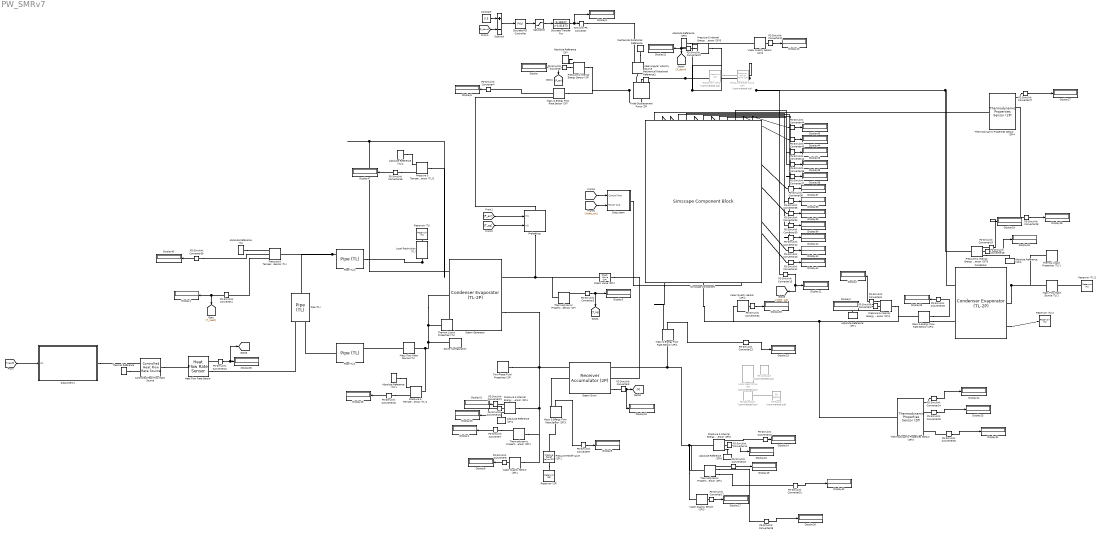
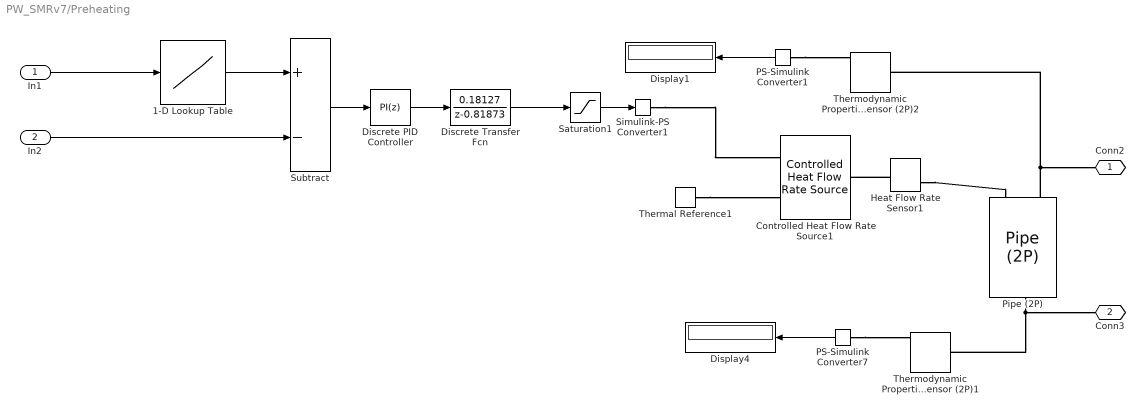
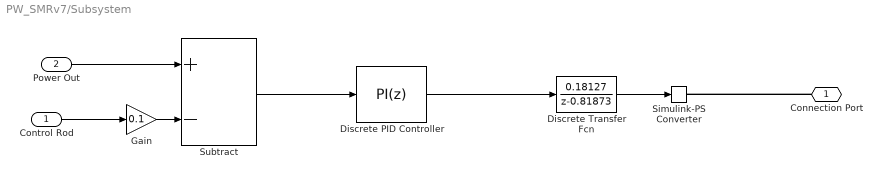
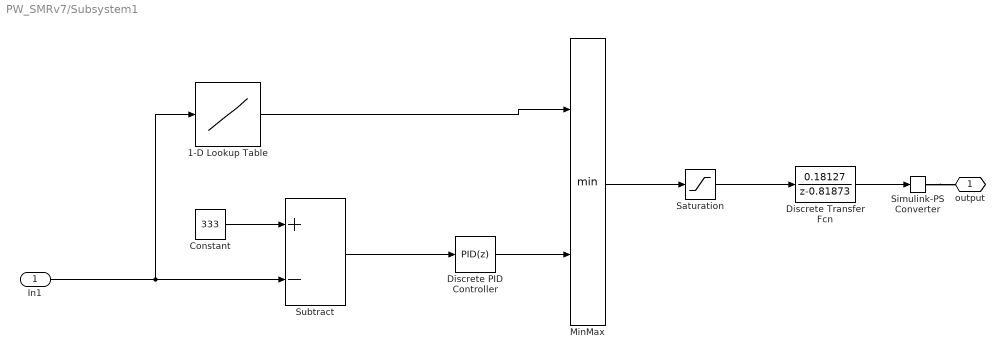
/*
 * PW_SMRv7.cpp
 *
 * Academic License - for use in teaching, academic research, and meeting
 * course requirements at degree granting institutions only.  Not for
 * government, commercial, or other organizational use.
 *
 * Code generation for model "PW_SMRv7".
 *
 * Model version              : 1.15
 * Simulink Coder version : 9.8 (R2022b) 13-May-2022
 * C++ source code generated on : Mon Sep 28 12:13:55 2026
 *
 * Target selection: slrealtime.tlc
 * Note: GRT includes extra infrastructure and instrumentation for prototyping
 * Embedded hardware selection: Intel->x86-64 (Linux 64)
 * Code generation objectives: Unspecified
 * Validation result: Not run
 */

#include "PW_SMRv7.h"
#include "rtwtypes.h"
#include "PW_SMRv7_cal.h"
#include <cstring>

extern "C"
{

#include "rt_nonfinite.h"

}

#include <stddef.h>
#include "PW_SMRv7_private.h"

/* Block signals (default storage) */
B_PW_SMRv7_T PW_SMRv7_B;

/* Block states (default storage) */
DW_PW_SMRv7_T PW_SMRv7_DW;

/* Real-time model */
RT_MODEL_PW_SMRv7_T PW_SMRv7_M_ = RT_MODEL_PW_SMRv7_T();
RT_MODEL_PW_SMRv7_T *const PW_SMRv7_M = &PW_SMRv7_M_;
real_T look1_binlxpw(real_T u0, const real_T bp0[], const real_T table[],
                     uint32_T maxIndex)
{
  real_T frac;
  real_T yL_0d0;
  uint32_T iLeft;

  /* Column-major Lookup 1-D
     Search method: 'binary'
     Use previous index: 'off'
     Interpolation method: 'Linear point-slope'
     Extrapolation method: 'Linear'
     Use last breakpoint for index at or above upper limit: 'off'
     Remove protection against out-of-range input in generated code: 'off'
   */
  /* Prelookup - Index and Fraction
     Index Search method: 'binary'
     Extrapolation method: 'Linear'
     Use previous index: 'off'
     Use last breakpoint for index at or above upper limit: 'off'
     Remove protection against out-of-range input in generated code: 'off'
   */
  if (u0 <= bp0[0U]) {
    iLeft = 0U;
    frac = (u0 - bp0[0U]) / (bp0[1U] - bp0[0U]);
  } else if (u0 < bp0[maxIndex]) {
    uint32_T bpIdx;
    uint32_T iRght;

    /* Binary Search */
    bpIdx = maxIndex >> 1U;
    iLeft = 0U;
    iRght = maxIndex;
    while (iRght - iLeft > 1U) {
      if (u0 < bp0[bpIdx]) {
        iRght = bpIdx;
      } else {
        iLeft = bpIdx;
      }

      bpIdx = (iRght + iLeft) >> 1U;
    }

    frac = (u0 - bp0[iLeft]) / (bp0[iLeft + 1U] - bp0[iLeft]);
  } else {
    iLeft = maxIndex - 1U;
    frac = (u0 - bp0[maxIndex - 1U]) / (bp0[maxIndex] - bp0[maxIndex - 1U]);
  }

  /* Column-major Interpolation 1-D
     Interpolation method: 'Linear point-slope'
     Use last breakpoint for index at or above upper limit: 'off'
     Overflow mode: 'portable wrapping'
   */
  yL_0d0 = table[iLeft];
  return (table[iLeft + 1U] - yL_0d0) * frac + yL_0d0;
}

/* Model step function */
void PW_SMRv7_step(void)
{
  NeslSimulationData *simulationData;
  NeslSimulator *simulator;
  NeuDiagnosticManager *diagnosticManager;
  NeuDiagnosticTree *diagnosticTree;
  char *msg;
  real_T tmp_2[327];
  real_T tmp_4[327];
  real_T tmp_6[327];
  real_T tmp_0[16];
  real_T tmp_8[16];
  real_T time;
  real_T time_0;
  real_T time_1;
  real_T time_2;
  real_T time_3;
  real_T time_4;
  real_T time_5;
  real_T time_6;
  real_T time_7;
  real_T u0;
  real_T u1;
  real_T u2;
  int32_T isHit;
  int32_T isHit_0;
  int32_T isHit_1;
  int32_T isHit_2;
  int32_T k;
  int_T tmp_3[6];
  int_T tmp_5[6];
  int_T tmp_7[6];
  int_T tmp_1[5];
  int_T tmp_9[5];
  boolean_T tmp;

  /* DiscreteTransferFcn: '<S51>/Discrete Transfer Fcn' */
  u1 = PW_SMRv7_cal->DiscreteTransferFcn_NumCoef *
    PW_SMRv7_DW.DiscreteTransferFcn_states;

  /* DiscreteTransferFcn: '<S51>/Discrete Transfer Fcn' */
  PW_SMRv7_B.DiscreteTransferFcn = u1;

  /* SimscapeInputBlock: '<S205>/INPUT_4_1_1' */
  PW_SMRv7_B.INPUT_4_1_1[0] = PW_SMRv7_B.DiscreteTransferFcn;
  PW_SMRv7_B.INPUT_4_1_1[1] = 0.0;
  PW_SMRv7_B.INPUT_4_1_1[2] = 0.0;
  PW_SMRv7_DW.INPUT_4_1_1_Discrete[0] = !(PW_SMRv7_B.INPUT_4_1_1[0] ==
    PW_SMRv7_DW.INPUT_4_1_1_Discrete[1]);
  PW_SMRv7_DW.INPUT_4_1_1_Discrete[1] = PW_SMRv7_B.INPUT_4_1_1[0];
  PW_SMRv7_B.INPUT_4_1_1[0] = PW_SMRv7_DW.INPUT_4_1_1_Discrete[1];
  PW_SMRv7_B.INPUT_4_1_1[3] = PW_SMRv7_DW.INPUT_4_1_1_Discrete[0];

  /* DiscreteTransferFcn: '<Root>/Discrete Transfer Fcn' */
  u1 = PW_SMRv7_cal->DiscreteTransferFcn_NumCoef_e *
    PW_SMRv7_DW.DiscreteTransferFcn_states_m;

  /* DiscreteTransferFcn: '<Root>/Discrete Transfer Fcn' */
  PW_SMRv7_B.DiscreteTransferFcn_a = u1;

  /* SimscapeInputBlock: '<S205>/INPUT_2_1_1' */
  PW_SMRv7_B.INPUT_2_1_1[0] = PW_SMRv7_B.DiscreteTransferFcn_a;
  PW_SMRv7_B.INPUT_2_1_1[1] = 0.0;
  PW_SMRv7_B.INPUT_2_1_1[2] = 0.0;
  PW_SMRv7_DW.INPUT_2_1_1_Discrete[0] = !(PW_SMRv7_B.INPUT_2_1_1[0] ==
    PW_SMRv7_DW.INPUT_2_1_1_Discrete[1]);
  PW_SMRv7_DW.INPUT_2_1_1_Discrete[1] = PW_SMRv7_B.INPUT_2_1_1[0];
  PW_SMRv7_B.INPUT_2_1_1[0] = PW_SMRv7_DW.INPUT_2_1_1_Discrete[1];
  PW_SMRv7_B.INPUT_2_1_1[3] = PW_SMRv7_DW.INPUT_2_1_1_Discrete[0];

  /* DiscreteTransferFcn: '<S47>/Discrete Transfer Fcn' */
  u1 = PW_SMRv7_cal->DiscreteTransferFcn_NumCoef_er *
    PW_SMRv7_DW.DiscreteTransferFcn_states_n;

  /* DiscreteTransferFcn: '<S47>/Discrete Transfer Fcn' */
  PW_SMRv7_B.DiscreteTransferFcn_o = u1;

  /* Saturate: '<S47>/Saturation1' */
  u0 = PW_SMRv7_B.DiscreteTransferFcn_o;
  u1 = PW_SMRv7_cal->Saturation1_LowerSat;
  u2 = PW_SMRv7_cal->Saturation1_UpperSat;
  if (u0 > u2) {
    /* Saturate: '<S47>/Saturation1' */
    PW_SMRv7_B.Saturation1 = u2;
  } else if (u0 < u1) {
    /* Saturate: '<S47>/Saturation1' */
    PW_SMRv7_B.Saturation1 = u1;
  } else {
    /* Saturate: '<S47>/Saturation1' */
    PW_SMRv7_B.Saturation1 = u0;
  }

  /* End of Saturate: '<S47>/Saturation1' */

  /* SimscapeInputBlock: '<S205>/INPUT_1_1_1' */
  PW_SMRv7_B.INPUT_1_1_1[0] = PW_SMRv7_B.Saturation1;
  PW_SMRv7_B.INPUT_1_1_1[1] = 0.0;
  PW_SMRv7_B.INPUT_1_1_1[2] = 0.0;
  PW_SMRv7_DW.INPUT_1_1_1_Discrete[0] = !(PW_SMRv7_B.INPUT_1_1_1[0] ==
    PW_SMRv7_DW.INPUT_1_1_1_Discrete[1]);
  PW_SMRv7_DW.INPUT_1_1_1_Discrete[1] = PW_SMRv7_B.INPUT_1_1_1[0];
  PW_SMRv7_B.INPUT_1_1_1[0] = PW_SMRv7_DW.INPUT_1_1_1_Discrete[1];
  PW_SMRv7_B.INPUT_1_1_1[3] = PW_SMRv7_DW.INPUT_1_1_1_Discrete[0];

  /* DiscreteTransferFcn: '<S50>/Discrete Transfer Fcn' */
  u1 = PW_SMRv7_cal->DiscreteTransferFcn_NumCoef_o *
    PW_SMRv7_DW.DiscreteTransferFcn_states_h;

  /* DiscreteTransferFcn: '<S50>/Discrete Transfer Fcn' */
  PW_SMRv7_B.DiscreteTransferFcn_n = u1;

  /* SimscapeInputBlock: '<S205>/INPUT_3_1_1' */
  PW_SMRv7_B.INPUT_3_1_1[0] = PW_SMRv7_B.DiscreteTransferFcn_n;
  PW_SMRv7_B.INPUT_3_1_1[1] = 0.0;
  PW_SMRv7_B.INPUT_3_1_1[2] = 0.0;
  PW_SMRv7_DW.INPUT_3_1_1_Discrete[0] = !(PW_SMRv7_B.INPUT_3_1_1[0] ==
    PW_SMRv7_DW.INPUT_3_1_1_Discrete[1]);
  PW_SMRv7_DW.INPUT_3_1_1_Discrete[1] = PW_SMRv7_B.INPUT_3_1_1[0];
  PW_SMRv7_B.INPUT_3_1_1[0] = PW_SMRv7_DW.INPUT_3_1_1_Discrete[1];
  PW_SMRv7_B.INPUT_3_1_1[3] = PW_SMRv7_DW.INPUT_3_1_1_Discrete[0];

  /* SimscapeExecutionBlock: '<S205>/STATE_1' */
  simulationData = static_cast<NeslSimulationData *>(PW_SMRv7_DW.STATE_1_SimData);
  time = PW_SMRv7_M->Timing.taskTime0;
  simulationData->mData->mTime.mN = 1;
  simulationData->mData->mTime.mX = &time;
  simulationData->mData->mContStates.mN = 0;
  simulationData->mData->mContStates.mX = NULL;
  simulationData->mData->mDiscStates.mN = 183;
  simulationData->mData->mDiscStates.mX = &PW_SMRv7_DW.STATE_1_Discrete[0];
  simulationData->mData->mModeVector.mN = 128;
  simulationData->mData->mModeVector.mX = &PW_SMRv7_DW.STATE_1_Modes[0];
  tmp = false;
  simulationData->mData->mFoundZcEvents = tmp;
  simulationData->mData->mIsMajorTimeStep = true;
  tmp = false;
  simulationData->mData->mIsSolverAssertCheck = tmp;
  simulationData->mData->mIsSolverCheckingCIC = false;
  simulationData->mData->mIsComputingJacobian = false;
  simulationData->mData->mIsEvaluatingF0 = false;
  simulationData->mData->mIsSolverRequestingReset = false;
  simulationData->mData->mIsModeUpdateTimeStep = true;
  tmp_1[0] = 0;
  tmp_0[0] = PW_SMRv7_B.INPUT_4_1_1[0];
  tmp_0[1] = PW_SMRv7_B.INPUT_4_1_1[1];
  tmp_0[2] = PW_SMRv7_B.INPUT_4_1_1[2];
  tmp_0[3] = PW_SMRv7_B.INPUT_4_1_1[3];
  tmp_1[1] = 4;
  tmp_0[4] = PW_SMRv7_B.INPUT_2_1_1[0];
  tmp_0[5] = PW_SMRv7_B.INPUT_2_1_1[1];
  tmp_0[6] = PW_SMRv7_B.INPUT_2_1_1[2];
  tmp_0[7] = PW_SMRv7_B.INPUT_2_1_1[3];
  tmp_1[2] = 8;
  tmp_0[8] = PW_SMRv7_B.INPUT_1_1_1[0];
  tmp_0[9] = PW_SMRv7_B.INPUT_1_1_1[1];
  tmp_0[10] = PW_SMRv7_B.INPUT_1_1_1[2];
  tmp_0[11] = PW_SMRv7_B.INPUT_1_1_1[3];
  tmp_1[3] = 12;
  tmp_0[12] = PW_SMRv7_B.INPUT_3_1_1[0];
  tmp_0[13] = PW_SMRv7_B.INPUT_3_1_1[1];
  tmp_0[14] = PW_SMRv7_B.INPUT_3_1_1[2];
  tmp_0[15] = PW_SMRv7_B.INPUT_3_1_1[3];
  tmp_1[4] = 16;
  simulationData->mData->mInputValues.mN = 16;
  simulationData->mData->mInputValues.mX = &tmp_0[0];
  simulationData->mData->mInputOffsets.mN = 5;
  simulationData->mData->mInputOffsets.mX = &tmp_1[0];
  simulationData->mData->mOutputs.mN = 311;
  simulationData->mData->mOutputs.mX = &PW_SMRv7_B.STATE_1[0];
  simulationData->mData->mTolerances.mN = 0;
  simulationData->mData->mTolerances.mX = NULL;
  simulationData->mData->mCstateHasChanged = false;
  time_0 = PW_SMRv7_M->Timing.taskTime0;
  simulationData->mData->mTime.mN = 1;
  simulationData->mData->mTime.mX = &time_0;
  isHit = 0;
  simulationData->mData->mSampleHits.mN = 1;
  simulationData->mData->mSampleHits.mX = &isHit;
  simulationData->mData->mIsFundamentalSampleHit = true;
  simulator = static_cast<NeslSimulator *>(PW_SMRv7_DW.STATE_1_Simulator);
  diagnosticManager = static_cast<NeuDiagnosticManager *>
    (PW_SMRv7_DW.STATE_1_DiagMgr);
  diagnosticTree = neu_diagnostic_manager_get_initial_tree(diagnosticManager);
  k = ne_simulator_method(simulator, NESL_SIM_OUTPUTS, simulationData,
    diagnosticManager);
  if (k != 0) {
    tmp = error_buffer_is_empty(rtmGetErrorStatus(PW_SMRv7_M));
    if (tmp) {
      msg = rtw_diagnostics_msg(diagnosticTree);
      rtmSetErrorStatus(PW_SMRv7_M, msg);
    }
  }

  /* End of SimscapeExecutionBlock: '<S205>/STATE_1' */

  /* SimscapeExecutionBlock: '<S205>/OUTPUT_1_1' */
  simulationData = static_cast<NeslSimulationData *>
    (PW_SMRv7_DW.OUTPUT_1_1_SimData);
  time_1 = PW_SMRv7_M->Timing.taskTime0;
  simulationData->mData->mTime.mN = 1;
  simulationData->mData->mTime.mX = &time_1;
  simulationData->mData->mContStates.mN = 0;
  simulationData->mData->mContStates.mX = NULL;
  simulationData->mData->mDiscStates.mN = 0;
  simulationData->mData->mDiscStates.mX = &PW_SMRv7_DW.OUTPUT_1_1_Discrete;
  simulationData->mData->mModeVector.mN = 0;
  simulationData->mData->mModeVector.mX = &PW_SMRv7_DW.OUTPUT_1_1_Modes;
  tmp = false;
  simulationData->mData->mFoundZcEvents = tmp;
  simulationData->mData->mIsMajorTimeStep = true;
  tmp = false;
  simulationData->mData->mIsSolverAssertCheck = tmp;
  simulationData->mData->mIsSolverCheckingCIC = false;
  simulationData->mData->mIsComputingJacobian = false;
  simulationData->mData->mIsEvaluatingF0 = false;
  simulationData->mData->mIsSolverRequestingReset = false;
  simulationData->mData->mIsModeUpdateTimeStep = true;
  tmp_3[0] = 0;
  tmp_2[0] = PW_SMRv7_B.INPUT_4_1_1[0];
  tmp_2[1] = PW_SMRv7_B.INPUT_4_1_1[1];
  tmp_2[2] = PW_SMRv7_B.INPUT_4_1_1[2];
  tmp_2[3] = PW_SMRv7_B.INPUT_4_1_1[3];
  tmp_3[1] = 4;
  tmp_2[4] = PW_SMRv7_B.INPUT_2_1_1[0];
  tmp_2[5] = PW_SMRv7_B.INPUT_2_1_1[1];
  tmp_2[6] = PW_SMRv7_B.INPUT_2_1_1[2];
  tmp_2[7] = PW_SMRv7_B.INPUT_2_1_1[3];
  tmp_3[2] = 8;
  tmp_2[8] = PW_SMRv7_B.INPUT_1_1_1[0];
  tmp_2[9] = PW_SMRv7_B.INPUT_1_1_1[1];
  tmp_2[10] = PW_SMRv7_B.INPUT_1_1_1[2];
  tmp_2[11] = PW_SMRv7_B.INPUT_1_1_1[3];
  tmp_3[3] = 12;
  tmp_2[12] = PW_SMRv7_B.INPUT_3_1_1[0];
  tmp_2[13] = PW_SMRv7_B.INPUT_3_1_1[1];
  tmp_2[14] = PW_SMRv7_B.INPUT_3_1_1[2];
  tmp_2[15] = PW_SMRv7_B.INPUT_3_1_1[3];
  tmp_3[4] = 16;
  std::memcpy(&tmp_2[16], &PW_SMRv7_B.STATE_1[0], 311U * sizeof(real_T));
  tmp_3[5] = 327;
  simulationData->mData->mInputValues.mN = 327;
  simulationData->mData->mInputValues.mX = &tmp_2[0];
  simulationData->mData->mInputOffsets.mN = 6;
  simulationData->mData->mInputOffsets.mX = &tmp_3[0];
  simulationData->mData->mOutputs.mN = 40;
  simulationData->mData->mOutputs.mX = &PW_SMRv7_B.OUTPUT_1_1[0];
  simulationData->mData->mTolerances.mN = 0;
  simulationData->mData->mTolerances.mX = NULL;
  simulationData->mData->mCstateHasChanged = false;
  time_2 = PW_SMRv7_M->Timing.taskTime0;
  simulationData->mData->mTime.mN = 1;
  simulationData->mData->mTime.mX = &time_2;
  isHit_0 = 0;
  simulationData->mData->mSampleHits.mN = 1;
  simulationData->mData->mSampleHits.mX = &isHit_0;
  simulationData->mData->mIsFundamentalSampleHit = true;
  simulator = static_cast<NeslSimulator *>(PW_SMRv7_DW.OUTPUT_1_1_Simulator);
  diagnosticManager = static_cast<NeuDiagnosticManager *>
    (PW_SMRv7_DW.OUTPUT_1_1_DiagMgr);
  diagnosticTree = neu_diagnostic_manager_get_initial_tree(diagnosticManager);
  k = ne_simulator_method(simulator, NESL_SIM_OUTPUTS, simulationData,
    diagnosticManager);
  if (k != 0) {
    tmp = error_buffer_is_empty(rtmGetErrorStatus(PW_SMRv7_M));
    if (tmp) {
      msg = rtw_diagnostics_msg(diagnosticTree);
      rtmSetErrorStatus(PW_SMRv7_M, msg);
    }
  }

  /* End of SimscapeExecutionBlock: '<S205>/OUTPUT_1_1' */

  /* Reshape: '<S117>/RESHAPE' */
  PW_SMRv7_B.RESHAPE = PW_SMRv7_B.OUTPUT_1_1[12];

  /* Sum: '<Root>/Subtract' incorporates:
   *  Constant: '<Root>/Constant'
   */
  PW_SMRv7_B.Subtract = PW_SMRv7_cal->Constant_Value - PW_SMRv7_B.RESHAPE;

  /* Gain: '<S90>/Proportional Gain' */
  PW_SMRv7_B.ProportionalGain = PW_SMRv7_cal->DiscretePIDController_P *
    PW_SMRv7_B.Subtract;

  /* DiscreteIntegrator: '<S85>/Integrator' */
  PW_SMRv7_B.Integrator = PW_SMRv7_DW.Integrator_DSTATE;

  /* Sum: '<S94>/Sum' */
  PW_SMRv7_B.Sum = PW_SMRv7_B.ProportionalGain + PW_SMRv7_B.Integrator;

  /* DeadZone: '<S78>/DeadZone' */
  if (PW_SMRv7_B.Sum > PW_SMRv7_cal->DiscretePIDController_UpperSatu) {
    /* DeadZone: '<S78>/DeadZone' */
    PW_SMRv7_B.DeadZone = PW_SMRv7_B.Sum -
      PW_SMRv7_cal->DiscretePIDController_UpperSatu;
  } else if (PW_SMRv7_B.Sum >= PW_SMRv7_cal->DiscretePIDController_LowerSatu) {
    /* DeadZone: '<S78>/DeadZone' */
    PW_SMRv7_B.DeadZone = 0.0;
  } else {
    /* DeadZone: '<S78>/DeadZone' */
    PW_SMRv7_B.DeadZone = PW_SMRv7_B.Sum -
      PW_SMRv7_cal->DiscretePIDController_LowerSatu;
  }

  /* End of DeadZone: '<S78>/DeadZone' */

  /* RelationalOperator: '<S76>/Relational Operator' incorporates:
   *  Constant: '<S76>/Clamping_zero'
   */
  PW_SMRv7_B.RelationalOperator = (PW_SMRv7_cal->Clamping_zero_Value !=
    PW_SMRv7_B.DeadZone);

  /* RelationalOperator: '<S76>/fix for DT propagation issue' incorporates:
   *  Constant: '<S76>/Clamping_zero'
   */
  PW_SMRv7_B.fixforDTpropagationissue = (PW_SMRv7_B.DeadZone >
    PW_SMRv7_cal->Clamping_zero_Value);

  /* Switch: '<S76>/Switch1' */
  if (PW_SMRv7_B.fixforDTpropagationissue) {
    /* Switch: '<S76>/Switch1' incorporates:
     *  Constant: '<S76>/Constant'
     */
    PW_SMRv7_B.Switch1 = PW_SMRv7_cal->Constant_Value_k;
  } else {
    /* Switch: '<S76>/Switch1' incorporates:
     *  Constant: '<S76>/Constant2'
     */
    PW_SMRv7_B.Switch1 = PW_SMRv7_cal->Constant2_Value;
  }

  /* End of Switch: '<S76>/Switch1' */

  /* Gain: '<S82>/Integral Gain' */
  PW_SMRv7_B.IntegralGain = PW_SMRv7_cal->DiscretePIDController_I *
    PW_SMRv7_B.Subtract;

  /* RelationalOperator: '<S76>/fix for DT propagation issue1' incorporates:
   *  Constant: '<S76>/Clamping_zero'
   */
  PW_SMRv7_B.fixforDTpropagationissue1 = (PW_SMRv7_B.IntegralGain >
    PW_SMRv7_cal->Clamping_zero_Value);

  /* Switch: '<S76>/Switch2' */
  if (PW_SMRv7_B.fixforDTpropagationissue1) {
    /* Switch: '<S76>/Switch2' incorporates:
     *  Constant: '<S76>/Constant3'
     */
    PW_SMRv7_B.Switch2 = PW_SMRv7_cal->Constant3_Value;
  } else {
    /* Switch: '<S76>/Switch2' incorporates:
     *  Constant: '<S76>/Constant4'
     */
    PW_SMRv7_B.Switch2 = PW_SMRv7_cal->Constant4_Value;
  }

  /* End of Switch: '<S76>/Switch2' */

  /* RelationalOperator: '<S76>/Equal1' */
  PW_SMRv7_B.Equal1 = (PW_SMRv7_B.Switch1 == PW_SMRv7_B.Switch2);

  /* Logic: '<S76>/AND3' */
  PW_SMRv7_B.AND3 = (PW_SMRv7_B.RelationalOperator && PW_SMRv7_B.Equal1);

  /* Switch: '<S76>/Switch' */
  if (PW_SMRv7_B.AND3) {
    /* Switch: '<S76>/Switch' incorporates:
     *  Constant: '<S76>/Constant1'
     */
    PW_SMRv7_B.Switch = PW_SMRv7_cal->Constant1_Value;
  } else {
    /* Switch: '<S76>/Switch' */
    PW_SMRv7_B.Switch = PW_SMRv7_B.IntegralGain;
  }

  /* End of Switch: '<S76>/Switch' */

  /* Saturate: '<S92>/Saturation' */
  u0 = PW_SMRv7_B.Sum;
  u1 = PW_SMRv7_cal->DiscretePIDController_LowerSatu;
  u2 = PW_SMRv7_cal->DiscretePIDController_UpperSatu;
  if (u0 > u2) {
    /* Saturate: '<S92>/Saturation' */
    PW_SMRv7_B.Saturation = u2;
  } else if (u0 < u1) {
    /* Saturate: '<S92>/Saturation' */
    PW_SMRv7_B.Saturation = u1;
  } else {
    /* Saturate: '<S92>/Saturation' */
    PW_SMRv7_B.Saturation = u0;
  }

  /* End of Saturate: '<S92>/Saturation' */

  /* Saturate: '<Root>/Saturation' */
  u0 = PW_SMRv7_B.Saturation;
  u1 = PW_SMRv7_cal->Saturation_LowerSat;
  u2 = PW_SMRv7_cal->Saturation_UpperSat;
  if (u0 > u2) {
    /* Saturate: '<Root>/Saturation' */
    PW_SMRv7_B.Saturation_l = u2;
  } else if (u0 < u1) {
    /* Saturate: '<Root>/Saturation' */
    PW_SMRv7_B.Saturation_l = u1;
  } else {
    /* Saturate: '<Root>/Saturation' */
    PW_SMRv7_B.Saturation_l = u0;
  }

  /* End of Saturate: '<Root>/Saturation' */

  /* Reshape: '<S102>/RESHAPE' */
  PW_SMRv7_B.RESHAPE_e = PW_SMRv7_B.OUTPUT_1_1[15];

  /* Reshape: '<S125>/RESHAPE' */
  PW_SMRv7_B.RESHAPE_k = PW_SMRv7_B.OUTPUT_1_1[35];

  /* Lookup_n-D: '<S47>/1-D Lookup Table' incorporates:
   *  Reshape: '<S102>/RESHAPE'
   */
  PW_SMRv7_B.uDLookupTable = look1_binlxpw(PW_SMRv7_B.RESHAPE_e,
    PW_SMRv7_cal->uDLookupTable_bp01Data, PW_SMRv7_cal->uDLookupTable_tableData,
    9U);

  /* Sum: '<S47>/Subtract' */
  PW_SMRv7_B.Subtract_h = PW_SMRv7_B.uDLookupTable - PW_SMRv7_B.RESHAPE_k;

  /* Gain: '<S189>/Proportional Gain' */
  PW_SMRv7_B.ProportionalGain_d = PW_SMRv7_cal->DiscretePIDController_P_h *
    PW_SMRv7_B.Subtract_h;

  /* DiscreteIntegrator: '<S184>/Integrator' */
  PW_SMRv7_B.Integrator_f = PW_SMRv7_DW.Integrator_DSTATE_k;

  /* Sum: '<S193>/Sum' */
  PW_SMRv7_B.Sum_p = PW_SMRv7_B.ProportionalGain_d + PW_SMRv7_B.Integrator_f;

  /* DeadZone: '<S177>/DeadZone' */
  if (PW_SMRv7_B.Sum_p > PW_SMRv7_P.DiscretePIDController_UpperSa_o) {
    /* DeadZone: '<S177>/DeadZone' */
    PW_SMRv7_B.DeadZone_n = PW_SMRv7_B.Sum_p -
      PW_SMRv7_P.DiscretePIDController_UpperSa_o;
  } else if (PW_SMRv7_B.Sum_p >= PW_SMRv7_P.DiscretePIDController_LowerSa_f) {
    /* DeadZone: '<S177>/DeadZone' */
    PW_SMRv7_B.DeadZone_n = 0.0;
  } else {
    /* DeadZone: '<S177>/DeadZone' */
    PW_SMRv7_B.DeadZone_n = PW_SMRv7_B.Sum_p -
      PW_SMRv7_P.DiscretePIDController_LowerSa_f;
  }

  /* End of DeadZone: '<S177>/DeadZone' */

  /* RelationalOperator: '<S175>/Relational Operator' incorporates:
   *  Constant: '<S175>/Clamping_zero'
   */
  PW_SMRv7_B.RelationalOperator_a = (PW_SMRv7_cal->Clamping_zero_Value_e !=
    PW_SMRv7_B.DeadZone_n);

  /* RelationalOperator: '<S175>/fix for DT propagation issue' incorporates:
   *  Constant: '<S175>/Clamping_zero'
   */
  PW_SMRv7_B.fixforDTpropagationissue_f = (PW_SMRv7_B.DeadZone_n >
    PW_SMRv7_cal->Clamping_zero_Value_e);

  /* Switch: '<S175>/Switch1' */
  if (PW_SMRv7_B.fixforDTpropagationissue_f) {
    /* Switch: '<S175>/Switch1' incorporates:
     *  Constant: '<S175>/Constant'
     */
    PW_SMRv7_B.Switch1_n = PW_SMRv7_cal->Constant_Value_e;
  } else {
    /* Switch: '<S175>/Switch1' incorporates:
     *  Constant: '<S175>/Constant2'
     */
    PW_SMRv7_B.Switch1_n = PW_SMRv7_cal->Constant2_Value_f;
  }

  /* End of Switch: '<S175>/Switch1' */

  /* Gain: '<S181>/Integral Gain' */
  PW_SMRv7_B.IntegralGain_p = PW_SMRv7_cal->DiscretePIDController_I_o *
    PW_SMRv7_B.Subtract_h;

  /* RelationalOperator: '<S175>/fix for DT propagation issue1' incorporates:
   *  Constant: '<S175>/Clamping_zero'
   */
  PW_SMRv7_B.fixforDTpropagationissue1_c = (PW_SMRv7_B.IntegralGain_p >
    PW_SMRv7_cal->Clamping_zero_Value_e);

  /* Switch: '<S175>/Switch2' */
  if (PW_SMRv7_B.fixforDTpropagationissue1_c) {
    /* Switch: '<S175>/Switch2' incorporates:
     *  Constant: '<S175>/Constant3'
     */
    PW_SMRv7_B.Switch2_g = PW_SMRv7_cal->Constant3_Value_i;
  } else {
    /* Switch: '<S175>/Switch2' incorporates:
     *  Constant: '<S175>/Constant4'
     */
    PW_SMRv7_B.Switch2_g = PW_SMRv7_cal->Constant4_Value_i;
  }

  /* End of Switch: '<S175>/Switch2' */

  /* RelationalOperator: '<S175>/Equal1' */
  PW_SMRv7_B.Equal1_i = (PW_SMRv7_B.Switch1_n == PW_SMRv7_B.Switch2_g);

  /* Logic: '<S175>/AND3' */
  PW_SMRv7_B.AND3_g = (PW_SMRv7_B.RelationalOperator_a && PW_SMRv7_B.Equal1_i);

  /* Switch: '<S175>/Switch' */
  if (PW_SMRv7_B.AND3_g) {
    /* Switch: '<S175>/Switch' incorporates:
     *  Constant: '<S175>/Constant1'
     */
    PW_SMRv7_B.Switch_a = PW_SMRv7_cal->Constant1_Value_d;
  } else {
    /* Switch: '<S175>/Switch' */
    PW_SMRv7_B.Switch_a = PW_SMRv7_B.IntegralGain_p;
  }

  /* End of Switch: '<S175>/Switch' */

  /* Saturate: '<S191>/Saturation' */
  u0 = PW_SMRv7_B.Sum_p;
  u1 = PW_SMRv7_P.DiscretePIDController_LowerSa_f;
  u2 = PW_SMRv7_P.DiscretePIDController_UpperSa_o;
  if (u0 > u2) {
    /* Saturate: '<S191>/Saturation' */
    PW_SMRv7_B.Saturation_m = u2;
  } else if (u0 < u1) {
    /* Saturate: '<S191>/Saturation' */
    PW_SMRv7_B.Saturation_m = u1;
  } else {
    /* Saturate: '<S191>/Saturation' */
    PW_SMRv7_B.Saturation_m = u0;
  }

  /* End of Saturate: '<S191>/Saturation' */

  /* Reshape: '<S201>/RESHAPE' */
  PW_SMRv7_B.RESHAPE_p = PW_SMRv7_B.OUTPUT_1_1[5];

  /* Reshape: '<S202>/RESHAPE' */
  PW_SMRv7_B.RESHAPE_n = PW_SMRv7_B.OUTPUT_1_1[4];

  /* Reshape: '<S103>/RESHAPE' */
  PW_SMRv7_B.RESHAPE_m = PW_SMRv7_B.OUTPUT_1_1[17];

  /* Lookup_n-D: '<S51>/1-D Lookup Table' incorporates:
   *  Reshape: '<S103>/RESHAPE'
   */
  PW_SMRv7_B.uDLookupTable_l = look1_binlxpw(PW_SMRv7_B.RESHAPE_m,
    PW_SMRv7_cal->uDLookupTable_bp01Data_p,
    PW_SMRv7_cal->uDLookupTable_tableData_j, 7U);

  /* Sum: '<S51>/Subtract' incorporates:
   *  Constant: '<S51>/Constant'
   */
  PW_SMRv7_B.Subtract_hm = PW_SMRv7_cal->Constant_Value_c - PW_SMRv7_B.RESHAPE_m;

  /* Gain: '<S299>/Proportional Gain' */
  PW_SMRv7_B.ProportionalGain_l = PW_SMRv7_cal->DiscretePIDController_P_l *
    PW_SMRv7_B.Subtract_hm;

  /* DiscreteIntegrator: '<S294>/Integrator' */
  PW_SMRv7_B.Integrator_n = PW_SMRv7_DW.Integrator_DSTATE_p;

  /* Gain: '<S288>/Derivative Gain' */
  PW_SMRv7_B.DerivativeGain = PW_SMRv7_cal->DiscretePIDController_D *
    PW_SMRv7_B.Subtract_hm;

  /* DiscreteIntegrator: '<S289>/Filter' */
  PW_SMRv7_B.Filter = PW_SMRv7_DW.Filter_DSTATE;

  /* Sum: '<S289>/SumD' */
  PW_SMRv7_B.SumD = PW_SMRv7_B.DerivativeGain - PW_SMRv7_B.Filter;

  /* Gain: '<S297>/Filter Coefficient' */
  PW_SMRv7_B.FilterCoefficient = PW_SMRv7_cal->DiscretePIDController_N *
    PW_SMRv7_B.SumD;

  /* Sum: '<S303>/Sum' */
  PW_SMRv7_B.Sum_f = (PW_SMRv7_B.ProportionalGain_l + PW_SMRv7_B.Integrator_n) +
    PW_SMRv7_B.FilterCoefficient;

  /* DeadZone: '<S287>/DeadZone' */
  if (PW_SMRv7_B.Sum_f > PW_SMRv7_cal->DiscretePIDController_UpperSa_n) {
    /* DeadZone: '<S287>/DeadZone' */
    PW_SMRv7_B.DeadZone_f = PW_SMRv7_B.Sum_f -
      PW_SMRv7_cal->DiscretePIDController_UpperSa_n;
  } else if (PW_SMRv7_B.Sum_f >= PW_SMRv7_cal->DiscretePIDController_LowerSa_a)
  {
    /* DeadZone: '<S287>/DeadZone' */
    PW_SMRv7_B.DeadZone_f = 0.0;
  } else {
    /* DeadZone: '<S287>/DeadZone' */
    PW_SMRv7_B.DeadZone_f = PW_SMRv7_B.Sum_f -
      PW_SMRv7_cal->DiscretePIDController_LowerSa_a;
  }

  /* End of DeadZone: '<S287>/DeadZone' */

  /* RelationalOperator: '<S285>/Relational Operator' incorporates:
   *  Constant: '<S285>/Clamping_zero'
   */
  PW_SMRv7_B.RelationalOperator_a4 = (PW_SMRv7_cal->Clamping_zero_Value_m !=
    PW_SMRv7_B.DeadZone_f);

  /* RelationalOperator: '<S285>/fix for DT propagation issue' incorporates:
   *  Constant: '<S285>/Clamping_zero'
   */
  PW_SMRv7_B.fixforDTpropagationissue_p = (PW_SMRv7_B.DeadZone_f >
    PW_SMRv7_cal->Clamping_zero_Value_m);

  /* Switch: '<S285>/Switch1' */
  if (PW_SMRv7_B.fixforDTpropagationissue_p) {
    /* Switch: '<S285>/Switch1' incorporates:
     *  Constant: '<S285>/Constant'
     */
    PW_SMRv7_B.Switch1_j = PW_SMRv7_cal->Constant_Value_f;
  } else {
    /* Switch: '<S285>/Switch1' incorporates:
     *  Constant: '<S285>/Constant2'
     */
    PW_SMRv7_B.Switch1_j = PW_SMRv7_cal->Constant2_Value_o;
  }

  /* End of Switch: '<S285>/Switch1' */

  /* Gain: '<S291>/Integral Gain' */
  PW_SMRv7_B.IntegralGain_c = PW_SMRv7_cal->DiscretePIDController_I_p *
    PW_SMRv7_B.Subtract_hm;

  /* RelationalOperator: '<S285>/fix for DT propagation issue1' incorporates:
   *  Constant: '<S285>/Clamping_zero'
   */
  PW_SMRv7_B.fixforDTpropagationissue1_h = (PW_SMRv7_B.IntegralGain_c >
    PW_SMRv7_cal->Clamping_zero_Value_m);

  /* Switch: '<S285>/Switch2' */
  if (PW_SMRv7_B.fixforDTpropagationissue1_h) {
    /* Switch: '<S285>/Switch2' incorporates:
     *  Constant: '<S285>/Constant3'
     */
    PW_SMRv7_B.Switch2_gt = PW_SMRv7_cal->Constant3_Value_m;
  } else {
    /* Switch: '<S285>/Switch2' incorporates:
     *  Constant: '<S285>/Constant4'
     */
    PW_SMRv7_B.Switch2_gt = PW_SMRv7_cal->Constant4_Value_o;
  }

  /* End of Switch: '<S285>/Switch2' */

  /* RelationalOperator: '<S285>/Equal1' */
  PW_SMRv7_B.Equal1_d = (PW_SMRv7_B.Switch1_j == PW_SMRv7_B.Switch2_gt);

  /* Logic: '<S285>/AND3' */
  PW_SMRv7_B.AND3_h = (PW_SMRv7_B.RelationalOperator_a4 && PW_SMRv7_B.Equal1_d);

  /* Switch: '<S285>/Switch' */
  if (PW_SMRv7_B.AND3_h) {
    /* Switch: '<S285>/Switch' incorporates:
     *  Constant: '<S285>/Constant1'
     */
    PW_SMRv7_B.Switch_f = PW_SMRv7_cal->Constant1_Value_i;
  } else {
    /* Switch: '<S285>/Switch' */
    PW_SMRv7_B.Switch_f = PW_SMRv7_B.IntegralGain_c;
  }

  /* End of Switch: '<S285>/Switch' */

  /* Saturate: '<S301>/Saturation' */
  u0 = PW_SMRv7_B.Sum_f;
  u1 = PW_SMRv7_cal->DiscretePIDController_LowerSa_a;
  u2 = PW_SMRv7_cal->DiscretePIDController_UpperSa_n;
  if (u0 > u2) {
    /* Saturate: '<S301>/Saturation' */
    PW_SMRv7_B.Saturation_f = u2;
  } else if (u0 < u1) {
    /* Saturate: '<S301>/Saturation' */
    PW_SMRv7_B.Saturation_f = u1;
  } else {
    /* Saturate: '<S301>/Saturation' */
    PW_SMRv7_B.Saturation_f = u0;
  }

  /* End of Saturate: '<S301>/Saturation' */

  /* MinMax: '<S51>/MinMax' */
  u0 = PW_SMRv7_B.uDLookupTable_l;
  u1 = PW_SMRv7_B.Saturation_f;
  if ((u0 <= u1) || rtIsNaN(u1)) {
    u1 = u0;
  }

  /* MinMax: '<S51>/MinMax' */
  PW_SMRv7_B.MinMax = u1;

  /* Saturate: '<S51>/Saturation' */
  u0 = PW_SMRv7_B.MinMax;
  u1 = PW_SMRv7_cal->Saturation_LowerSat_j;
  u2 = PW_SMRv7_P.Saturation_UpperSat_b;
  if (u0 > u2) {
    /* Saturate: '<S51>/Saturation' */
    PW_SMRv7_B.Saturation_d = u2;
  } else if (u0 < u1) {
    /* Saturate: '<S51>/Saturation' */
    PW_SMRv7_B.Saturation_d = u1;
  } else {
    /* Saturate: '<S51>/Saturation' */
    PW_SMRv7_B.Saturation_d = u0;
  }

  /* End of Saturate: '<S51>/Saturation' */

  /* Reshape: '<S105>/RESHAPE' */
  PW_SMRv7_B.RESHAPE_j = PW_SMRv7_B.OUTPUT_1_1[37];

  /* SimscapeExecutionBlock: '<S205>/OUTPUT_1_2' */
  simulationData = static_cast<NeslSimulationData *>
    (PW_SMRv7_DW.OUTPUT_1_2_SimData);
  time_3 = PW_SMRv7_M->Timing.taskTime0;
  simulationData->mData->mTime.mN = 1;
  simulationData->mData->mTime.mX = &time_3;
  simulationData->mData->mContStates.mN = 0;
  simulationData->mData->mContStates.mX = NULL;
  simulationData->mData->mDiscStates.mN = 0;
  simulationData->mData->mDiscStates.mX = &PW_SMRv7_DW.OUTPUT_1_2_Discrete;
  simulationData->mData->mModeVector.mN = 0;
  simulationData->mData->mModeVector.mX = &PW_SMRv7_DW.OUTPUT_1_2_Modes;
  tmp = false;
  simulationData->mData->mFoundZcEvents = tmp;
  simulationData->mData->mIsMajorTimeStep = true;
  tmp = false;
  simulationData->mData->mIsSolverAssertCheck = tmp;
  simulationData->mData->mIsSolverCheckingCIC = false;
  simulationData->mData->mIsComputingJacobian = false;
  simulationData->mData->mIsEvaluatingF0 = false;
  simulationData->mData->mIsSolverRequestingReset = false;
  simulationData->mData->mIsModeUpdateTimeStep = true;
  tmp_5[0] = 0;
  tmp_4[0] = PW_SMRv7_B.INPUT_4_1_1[0];
  tmp_4[1] = PW_SMRv7_B.INPUT_4_1_1[1];
  tmp_4[2] = PW_SMRv7_B.INPUT_4_1_1[2];
  tmp_4[3] = PW_SMRv7_B.INPUT_4_1_1[3];
  tmp_5[1] = 4;
  tmp_4[4] = PW_SMRv7_B.INPUT_2_1_1[0];
  tmp_4[5] = PW_SMRv7_B.INPUT_2_1_1[1];
  tmp_4[6] = PW_SMRv7_B.INPUT_2_1_1[2];
  tmp_4[7] = PW_SMRv7_B.INPUT_2_1_1[3];
  tmp_5[2] = 8;
  tmp_4[8] = PW_SMRv7_B.INPUT_1_1_1[0];
  tmp_4[9] = PW_SMRv7_B.INPUT_1_1_1[1];
  tmp_4[10] = PW_SMRv7_B.INPUT_1_1_1[2];
  tmp_4[11] = PW_SMRv7_B.INPUT_1_1_1[3];
  tmp_5[3] = 12;
  tmp_4[12] = PW_SMRv7_B.INPUT_3_1_1[0];
  tmp_4[13] = PW_SMRv7_B.INPUT_3_1_1[1];
  tmp_4[14] = PW_SMRv7_B.INPUT_3_1_1[2];
  tmp_4[15] = PW_SMRv7_B.INPUT_3_1_1[3];
  tmp_5[4] = 16;
  std::memcpy(&tmp_4[16], &PW_SMRv7_B.STATE_1[0], 311U * sizeof(real_T));
  tmp_5[5] = 327;
  simulationData->mData->mInputValues.mN = 327;
  simulationData->mData->mInputValues.mX = &tmp_4[0];
  simulationData->mData->mInputOffsets.mN = 6;
  simulationData->mData->mInputOffsets.mX = &tmp_5[0];
  simulationData->mData->mOutputs.mN = 6;
  simulationData->mData->mOutputs.mX = &PW_SMRv7_B.OUTPUT_1_2[0];
  simulationData->mData->mTolerances.mN = 0;
  simulationData->mData->mTolerances.mX = NULL;
  simulationData->mData->mCstateHasChanged = false;
  time_4 = PW_SMRv7_M->Timing.taskTime0;
  simulationData->mData->mTime.mN = 1;
  simulationData->mData->mTime.mX = &time_4;
  isHit_1 = 0;
  simulationData->mData->mSampleHits.mN = 1;
  simulationData->mData->mSampleHits.mX = &isHit_1;
  simulationData->mData->mIsFundamentalSampleHit = true;
  simulator = static_cast<NeslSimulator *>(PW_SMRv7_DW.OUTPUT_1_2_Simulator);
  diagnosticManager = static_cast<NeuDiagnosticManager *>
    (PW_SMRv7_DW.OUTPUT_1_2_DiagMgr);
  diagnosticTree = neu_diagnostic_manager_get_initial_tree(diagnosticManager);
  k = ne_simulator_method(simulator, NESL_SIM_OUTPUTS, simulationData,
    diagnosticManager);
  if (k != 0) {
    tmp = error_buffer_is_empty(rtmGetErrorStatus(PW_SMRv7_M));
    if (tmp) {
      msg = rtw_diagnostics_msg(diagnosticTree);
      rtmSetErrorStatus(PW_SMRv7_M, msg);
    }
  }

  /* End of SimscapeExecutionBlock: '<S205>/OUTPUT_1_2' */

  /* Reshape: '<S107>/RESHAPE' */
  PW_SMRv7_B.RESHAPE_ef = PW_SMRv7_B.OUTPUT_1_2[5];

  /* SimscapeExecutionBlock: '<S205>/OUTPUT_1_0' */
  simulationData = static_cast<NeslSimulationData *>
    (PW_SMRv7_DW.OUTPUT_1_0_SimData);
  time_5 = PW_SMRv7_M->Timing.taskTime0;
  simulationData->mData->mTime.mN = 1;
  simulationData->mData->mTime.mX = &time_5;
  simulationData->mData->mContStates.mN = 0;
  simulationData->mData->mContStates.mX = NULL;
  simulationData->mData->mDiscStates.mN = 0;
  simulationData->mData->mDiscStates.mX = &PW_SMRv7_DW.OUTPUT_1_0_Discrete;
  simulationData->mData->mModeVector.mN = 0;
  simulationData->mData->mModeVector.mX = &PW_SMRv7_DW.OUTPUT_1_0_Modes;
  tmp = false;
  simulationData->mData->mFoundZcEvents = tmp;
  simulationData->mData->mIsMajorTimeStep = true;
  tmp = false;
  simulationData->mData->mIsSolverAssertCheck = tmp;
  simulationData->mData->mIsSolverCheckingCIC = false;
  simulationData->mData->mIsComputingJacobian = false;
  simulationData->mData->mIsEvaluatingF0 = false;
  simulationData->mData->mIsSolverRequestingReset = false;
  simulationData->mData->mIsModeUpdateTimeStep = true;
  tmp_7[0] = 0;
  tmp_6[0] = PW_SMRv7_B.INPUT_4_1_1[0];
  tmp_6[1] = PW_SMRv7_B.INPUT_4_1_1[1];
  tmp_6[2] = PW_SMRv7_B.INPUT_4_1_1[2];
  tmp_6[3] = PW_SMRv7_B.INPUT_4_1_1[3];
  tmp_7[1] = 4;
  tmp_6[4] = PW_SMRv7_B.INPUT_2_1_1[0];
  tmp_6[5] = PW_SMRv7_B.INPUT_2_1_1[1];
  tmp_6[6] = PW_SMRv7_B.INPUT_2_1_1[2];
  tmp_6[7] = PW_SMRv7_B.INPUT_2_1_1[3];
  tmp_7[2] = 8;
  tmp_6[8] = PW_SMRv7_B.INPUT_1_1_1[0];
  tmp_6[9] = PW_SMRv7_B.INPUT_1_1_1[1];
  tmp_6[10] = PW_SMRv7_B.INPUT_1_1_1[2];
  tmp_6[11] = PW_SMRv7_B.INPUT_1_1_1[3];
  tmp_7[3] = 12;
  tmp_6[12] = PW_SMRv7_B.INPUT_3_1_1[0];
  tmp_6[13] = PW_SMRv7_B.INPUT_3_1_1[1];
  tmp_6[14] = PW_SMRv7_B.INPUT_3_1_1[2];
  tmp_6[15] = PW_SMRv7_B.INPUT_3_1_1[3];
  tmp_7[4] = 16;
  std::memcpy(&tmp_6[16], &PW_SMRv7_B.STATE_1[0], 311U * sizeof(real_T));
  tmp_7[5] = 327;
  simulationData->mData->mInputValues.mN = 327;
  simulationData->mData->mInputValues.mX = &tmp_6[0];
  simulationData->mData->mInputOffsets.mN = 6;
  simulationData->mData->mInputOffsets.mX = &tmp_7[0];
  simulationData->mData->mOutputs.mN = 1;

  /* SimscapeExecutionBlock: '<S205>/OUTPUT_1_0' */
  simulationData->mData->mOutputs.mX = &PW_SMRv7_B.OUTPUT_1_0;

  /* SimscapeExecutionBlock: '<S205>/OUTPUT_1_0' */
  simulationData->mData->mTolerances.mN = 0;
  simulationData->mData->mTolerances.mX = NULL;
  simulationData->mData->mCstateHasChanged = false;
  time_6 = PW_SMRv7_M->Timing.taskTime0;
  simulationData->mData->mTime.mN = 1;
  simulationData->mData->mTime.mX = &time_6;
  isHit_2 = 0;
  simulationData->mData->mSampleHits.mN = 1;
  simulationData->mData->mSampleHits.mX = &isHit_2;
  simulationData->mData->mIsFundamentalSampleHit = true;
  simulator = static_cast<NeslSimulator *>(PW_SMRv7_DW.OUTPUT_1_0_Simulator);
  diagnosticManager = static_cast<NeuDiagnosticManager *>
    (PW_SMRv7_DW.OUTPUT_1_0_DiagMgr);
  diagnosticTree = neu_diagnostic_manager_get_initial_tree(diagnosticManager);
  k = ne_simulator_method(simulator, NESL_SIM_OUTPUTS, simulationData,
    diagnosticManager);
  if (k != 0) {
    tmp = error_buffer_is_empty(rtmGetErrorStatus(PW_SMRv7_M));
    if (tmp) {
      msg = rtw_diagnostics_msg(diagnosticTree);
      rtmSetErrorStatus(PW_SMRv7_M, msg);
    }
  }

  /* Reshape: '<S104>/RESHAPE' */
  PW_SMRv7_B.RESHAPE_ps = PW_SMRv7_B.OUTPUT_1_0;

  /* Gain: '<S50>/Gain' */
  PW_SMRv7_B.Gain = PW_SMRv7_cal->Gain_Gain * PW_SMRv7_B.RESHAPE_ps;

  /* Sum: '<S50>/Subtract' */
  PW_SMRv7_B.Subtract_m = PW_SMRv7_B.RESHAPE_ef - PW_SMRv7_B.Gain;

  /* Gain: '<S246>/Proportional Gain' */
  PW_SMRv7_B.ProportionalGain_c = PW_SMRv7_cal->DiscretePIDController_P_p *
    PW_SMRv7_B.Subtract_m;

  /* DiscreteIntegrator: '<S241>/Integrator' */
  PW_SMRv7_B.Integrator_c = PW_SMRv7_DW.Integrator_DSTATE_e;

  /* Sum: '<S250>/Sum' */
  PW_SMRv7_B.Sum_k = PW_SMRv7_B.ProportionalGain_c + PW_SMRv7_B.Integrator_c;

  /* DeadZone: '<S234>/DeadZone' */
  if (PW_SMRv7_B.Sum_k > PW_SMRv7_cal->DiscretePIDController_UpperSa_l) {
    /* DeadZone: '<S234>/DeadZone' */
    PW_SMRv7_B.DeadZone_m = PW_SMRv7_B.Sum_k -
      PW_SMRv7_cal->DiscretePIDController_UpperSa_l;
  } else if (PW_SMRv7_B.Sum_k >= PW_SMRv7_cal->DiscretePIDController_LowerSa_h)
  {
    /* DeadZone: '<S234>/DeadZone' */
    PW_SMRv7_B.DeadZone_m = 0.0;
  } else {
    /* DeadZone: '<S234>/DeadZone' */
    PW_SMRv7_B.DeadZone_m = PW_SMRv7_B.Sum_k -
      PW_SMRv7_cal->DiscretePIDController_LowerSa_h;
  }

  /* End of DeadZone: '<S234>/DeadZone' */

  /* RelationalOperator: '<S232>/Relational Operator' incorporates:
   *  Constant: '<S232>/Clamping_zero'
   */
  PW_SMRv7_B.RelationalOperator_o = (PW_SMRv7_cal->Clamping_zero_Value_f !=
    PW_SMRv7_B.DeadZone_m);

  /* RelationalOperator: '<S232>/fix for DT propagation issue' incorporates:
   *  Constant: '<S232>/Clamping_zero'
   */
  PW_SMRv7_B.fixforDTpropagationissue_m = (PW_SMRv7_B.DeadZone_m >
    PW_SMRv7_cal->Clamping_zero_Value_f);

  /* Switch: '<S232>/Switch1' */
  if (PW_SMRv7_B.fixforDTpropagationissue_m) {
    /* Switch: '<S232>/Switch1' incorporates:
     *  Constant: '<S232>/Constant'
     */
    PW_SMRv7_B.Switch1_nb = PW_SMRv7_cal->Constant_Value_l;
  } else {
    /* Switch: '<S232>/Switch1' incorporates:
     *  Constant: '<S232>/Constant2'
     */
    PW_SMRv7_B.Switch1_nb = PW_SMRv7_cal->Constant2_Value_m;
  }

  /* End of Switch: '<S232>/Switch1' */

  /* Gain: '<S238>/Integral Gain' */
  PW_SMRv7_B.IntegralGain_d = PW_SMRv7_cal->DiscretePIDController_I_n *
    PW_SMRv7_B.Subtract_m;

  /* RelationalOperator: '<S232>/fix for DT propagation issue1' incorporates:
   *  Constant: '<S232>/Clamping_zero'
   */
  PW_SMRv7_B.fixforDTpropagationissue1_b = (PW_SMRv7_B.IntegralGain_d >
    PW_SMRv7_cal->Clamping_zero_Value_f);

  /* Switch: '<S232>/Switch2' */
  if (PW_SMRv7_B.fixforDTpropagationissue1_b) {
    /* Switch: '<S232>/Switch2' incorporates:
     *  Constant: '<S232>/Constant3'
     */
    PW_SMRv7_B.Switch2_p = PW_SMRv7_cal->Constant3_Value_e;
  } else {
    /* Switch: '<S232>/Switch2' incorporates:
     *  Constant: '<S232>/Constant4'
     */
    PW_SMRv7_B.Switch2_p = PW_SMRv7_cal->Constant4_Value_j;
  }

  /* End of Switch: '<S232>/Switch2' */

  /* RelationalOperator: '<S232>/Equal1' */
  PW_SMRv7_B.Equal1_o = (PW_SMRv7_B.Switch1_nb == PW_SMRv7_B.Switch2_p);

  /* Logic: '<S232>/AND3' */
  PW_SMRv7_B.AND3_l = (PW_SMRv7_B.RelationalOperator_o && PW_SMRv7_B.Equal1_o);

  /* Switch: '<S232>/Switch' */
  if (PW_SMRv7_B.AND3_l) {
    /* Switch: '<S232>/Switch' incorporates:
     *  Constant: '<S232>/Constant1'
     */
    PW_SMRv7_B.Switch_m = PW_SMRv7_cal->Constant1_Value_n;
  } else {
    /* Switch: '<S232>/Switch' */
    PW_SMRv7_B.Switch_m = PW_SMRv7_B.IntegralGain_d;
  }

  /* End of Switch: '<S232>/Switch' */

  /* Saturate: '<S248>/Saturation' */
  u0 = PW_SMRv7_B.Sum_k;
  u1 = PW_SMRv7_cal->DiscretePIDController_LowerSa_h;
  u2 = PW_SMRv7_cal->DiscretePIDController_UpperSa_l;
  if (u0 > u2) {
    /* Saturate: '<S248>/Saturation' */
    PW_SMRv7_B.Saturation_i = u2;
  } else if (u0 < u1) {
    /* Saturate: '<S248>/Saturation' */
    PW_SMRv7_B.Saturation_i = u1;
  } else {
    /* Saturate: '<S248>/Saturation' */
    PW_SMRv7_B.Saturation_i = u0;
  }

  /* End of Saturate: '<S248>/Saturation' */
  /* Reshape: '<S106>/RESHAPE' */
  PW_SMRv7_B.RESHAPE_a = PW_SMRv7_B.OUTPUT_1_1[18];

  /* Reshape: '<S108>/RESHAPE' */
  PW_SMRv7_B.RESHAPE_l = PW_SMRv7_B.OUTPUT_1_1[13];

  /* Reshape: '<S109>/RESHAPE' */
  PW_SMRv7_B.RESHAPE_p0 = PW_SMRv7_B.OUTPUT_1_1[14];

  /* Reshape: '<S110>/RESHAPE' */
  PW_SMRv7_B.RESHAPE_av = PW_SMRv7_B.OUTPUT_1_1[29];

  /* Reshape: '<S142>/RESHAPE' */
  PW_SMRv7_B.RESHAPE_ab = PW_SMRv7_B.OUTPUT_1_1[25];

  /* Reshape: '<S111>/RESHAPE' */
  PW_SMRv7_B.RESHAPE_po = PW_SMRv7_B.OUTPUT_1_1[38];

  /* Reshape: '<S112>/RESHAPE' */
  PW_SMRv7_B.RESHAPE_my = PW_SMRv7_B.OUTPUT_1_1[8];

  /* Reshape: '<S113>/RESHAPE' */
  PW_SMRv7_B.RESHAPE_b = PW_SMRv7_B.OUTPUT_1_1[9];

  /* Reshape: '<S114>/RESHAPE' */
  PW_SMRv7_B.RESHAPE_h = PW_SMRv7_B.OUTPUT_1_1[6];

  /* Reshape: '<S115>/RESHAPE' */
  PW_SMRv7_B.RESHAPE_nj = PW_SMRv7_B.OUTPUT_1_1[10];

  /* Reshape: '<S116>/RESHAPE' */
  PW_SMRv7_B.RESHAPE_o = PW_SMRv7_B.OUTPUT_1_1[11];

  /* Reshape: '<S118>/RESHAPE' */
  PW_SMRv7_B.RESHAPE_bx = PW_SMRv7_B.OUTPUT_1_1[0];

  /* Reshape: '<S119>/RESHAPE' */
  PW_SMRv7_B.RESHAPE_o4 = PW_SMRv7_B.OUTPUT_1_1[32];

  /* Reshape: '<S120>/RESHAPE' */
  PW_SMRv7_B.RESHAPE_ou = PW_SMRv7_B.OUTPUT_1_1[30];

  /* Reshape: '<S121>/RESHAPE' */
  PW_SMRv7_B.RESHAPE_j1 = PW_SMRv7_B.OUTPUT_1_1[27];

  /* Reshape: '<S122>/RESHAPE' */
  PW_SMRv7_B.RESHAPE_c = PW_SMRv7_B.OUTPUT_1_1[34];

  /* Reshape: '<S123>/RESHAPE' */
  PW_SMRv7_B.RESHAPE_m5 = PW_SMRv7_B.OUTPUT_1_1[33];

  /* Reshape: '<S124>/RESHAPE' */
  PW_SMRv7_B.RESHAPE_k4 = PW_SMRv7_B.OUTPUT_1_1[1];

  /* Reshape: '<S126>/RESHAPE' */
  PW_SMRv7_B.RESHAPE_li = PW_SMRv7_B.OUTPUT_1_1[31];

  /* Reshape: '<S127>/RESHAPE' */
  PW_SMRv7_B.RESHAPE_eh = PW_SMRv7_B.OUTPUT_1_1[28];

  /* Reshape: '<S128>/RESHAPE' */
  PW_SMRv7_B.RESHAPE_kh = PW_SMRv7_B.OUTPUT_1_1[39];

  /* Reshape: '<S129>/RESHAPE' */
  PW_SMRv7_B.RESHAPE_e3 = PW_SMRv7_B.OUTPUT_1_1[20];

  /* Reshape: '<S130>/RESHAPE' */
  PW_SMRv7_B.RESHAPE_cs = PW_SMRv7_B.OUTPUT_1_2[0];

  /* Reshape: '<S131>/RESHAPE' */
  PW_SMRv7_B.RESHAPE_lj = PW_SMRv7_B.OUTPUT_1_2[4];

  /* Reshape: '<S132>/RESHAPE' */
  PW_SMRv7_B.RESHAPE_ce = PW_SMRv7_B.OUTPUT_1_2[3];

  /* Reshape: '<S133>/RESHAPE' */
  PW_SMRv7_B.RESHAPE_d = PW_SMRv7_B.OUTPUT_1_1[22];

  /* Reshape: '<S134>/RESHAPE' */
  PW_SMRv7_B.RESHAPE_f = PW_SMRv7_B.OUTPUT_1_1[21];

  /* Reshape: '<S144>/RESHAPE' */
  PW_SMRv7_B.RESHAPE_jf = PW_SMRv7_B.OUTPUT_1_1[26];

  /* Reshape: '<S135>/RESHAPE' */
  PW_SMRv7_B.RESHAPE_e0 = PW_SMRv7_B.OUTPUT_1_1[16];

  /* Reshape: '<S137>/RESHAPE' */
  PW_SMRv7_B.RESHAPE_ad = PW_SMRv7_B.OUTPUT_1_1[19];

  /* Reshape: '<S138>/RESHAPE' */
  PW_SMRv7_B.RESHAPE_nt = PW_SMRv7_B.OUTPUT_1_2[1];

  /* Reshape: '<S139>/RESHAPE' */
  PW_SMRv7_B.RESHAPE_je = PW_SMRv7_B.OUTPUT_1_1[24];

  /* Reshape: '<S140>/RESHAPE' */
  PW_SMRv7_B.RESHAPE_nc = PW_SMRv7_B.OUTPUT_1_2[2];

  /* Reshape: '<S141>/RESHAPE' */
  PW_SMRv7_B.RESHAPE_e0x = PW_SMRv7_B.OUTPUT_1_1[23];

  /* Reshape: '<S136>/RESHAPE' */
  PW_SMRv7_B.RESHAPE_c4 = PW_SMRv7_B.OUTPUT_1_1[3];

  /* Reshape: '<S145>/RESHAPE' */
  PW_SMRv7_B.RESHAPE_g = PW_SMRv7_B.OUTPUT_1_1[36];

  /* Reshape: '<S143>/RESHAPE' */
  PW_SMRv7_B.RESHAPE_i = PW_SMRv7_B.OUTPUT_1_1[7];

  /* Reshape: '<S146>/RESHAPE' */
  PW_SMRv7_B.RESHAPE_fp = PW_SMRv7_B.OUTPUT_1_1[2];

  /* Update for DiscreteTransferFcn: '<S51>/Discrete Transfer Fcn' */
  u1 = PW_SMRv7_B.Saturation_d;
  u1 -= PW_SMRv7_cal->DiscreteTransferFcn_DenCoef[1] *
    PW_SMRv7_DW.DiscreteTransferFcn_states;
  u1 /= PW_SMRv7_cal->DiscreteTransferFcn_DenCoef[0];
  PW_SMRv7_DW.DiscreteTransferFcn_states = u1;

  /* Update for DiscreteTransferFcn: '<Root>/Discrete Transfer Fcn' */
  u1 = PW_SMRv7_B.Saturation_l;
  u1 -= PW_SMRv7_cal->DiscreteTransferFcn_DenCoef_l[1] *
    PW_SMRv7_DW.DiscreteTransferFcn_states_m;
  u1 /= PW_SMRv7_cal->DiscreteTransferFcn_DenCoef_l[0];
  PW_SMRv7_DW.DiscreteTransferFcn_states_m = u1;

  /* Update for DiscreteTransferFcn: '<S47>/Discrete Transfer Fcn' */
  u1 = PW_SMRv7_B.Saturation_m;
  u1 -= PW_SMRv7_cal->DiscreteTransferFcn_DenCoef_b[1] *
    PW_SMRv7_DW.DiscreteTransferFcn_states_n;
  u1 /= PW_SMRv7_cal->DiscreteTransferFcn_DenCoef_b[0];
  PW_SMRv7_DW.DiscreteTransferFcn_states_n = u1;

  /* Update for DiscreteTransferFcn: '<S50>/Discrete Transfer Fcn' */
  u1 = PW_SMRv7_B.Saturation_i;
  u1 -= PW_SMRv7_cal->DiscreteTransferFcn_DenCoef_i[1] *
    PW_SMRv7_DW.DiscreteTransferFcn_states_h;
  u1 /= PW_SMRv7_cal->DiscreteTransferFcn_DenCoef_i[0];
  PW_SMRv7_DW.DiscreteTransferFcn_states_h = u1;

  /* Update for SimscapeExecutionBlock: '<S205>/STATE_1' */
  simulationData = static_cast<NeslSimulationData *>(PW_SMRv7_DW.STATE_1_SimData);
  time_7 = PW_SMRv7_M->Timing.taskTime0;
  simulationData->mData->mTime.mN = 1;
  simulationData->mData->mTime.mX = &time_7;
  simulationData->mData->mContStates.mN = 0;
  simulationData->mData->mContStates.mX = NULL;
  simulationData->mData->mDiscStates.mN = 183;
  simulationData->mData->mDiscStates.mX = &PW_SMRv7_DW.STATE_1_Discrete[0];
  simulationData->mData->mModeVector.mN = 128;
  simulationData->mData->mModeVector.mX = &PW_SMRv7_DW.STATE_1_Modes[0];
  tmp = false;
  simulationData->mData->mFoundZcEvents = tmp;
  simulationData->mData->mIsMajorTimeStep = true;
  tmp = false;
  simulationData->mData->mIsSolverAssertCheck = tmp;
  simulationData->mData->mIsSolverCheckingCIC = false;
  simulationData->mData->mIsComputingJacobian = false;
  simulationData->mData->mIsEvaluatingF0 = false;
  simulationData->mData->mIsSolverRequestingReset = false;
  simulationData->mData->mIsModeUpdateTimeStep = true;
  tmp_9[0] = 0;
  tmp_8[0] = PW_SMRv7_B.INPUT_4_1_1[0];
  tmp_8[1] = PW_SMRv7_B.INPUT_4_1_1[1];
  tmp_8[2] = PW_SMRv7_B.INPUT_4_1_1[2];
  tmp_8[3] = PW_SMRv7_B.INPUT_4_1_1[3];
  tmp_9[1] = 4;
  tmp_8[4] = PW_SMRv7_B.INPUT_2_1_1[0];
  tmp_8[5] = PW_SMRv7_B.INPUT_2_1_1[1];
  tmp_8[6] = PW_SMRv7_B.INPUT_2_1_1[2];
  tmp_8[7] = PW_SMRv7_B.INPUT_2_1_1[3];
  tmp_9[2] = 8;
  tmp_8[8] = PW_SMRv7_B.INPUT_1_1_1[0];
  tmp_8[9] = PW_SMRv7_B.INPUT_1_1_1[1];
  tmp_8[10] = PW_SMRv7_B.INPUT_1_1_1[2];
  tmp_8[11] = PW_SMRv7_B.INPUT_1_1_1[3];
  tmp_9[3] = 12;
  tmp_8[12] = PW_SMRv7_B.INPUT_3_1_1[0];
  tmp_8[13] = PW_SMRv7_B.INPUT_3_1_1[1];
  tmp_8[14] = PW_SMRv7_B.INPUT_3_1_1[2];
  tmp_8[15] = PW_SMRv7_B.INPUT_3_1_1[3];
  tmp_9[4] = 16;
  simulationData->mData->mInputValues.mN = 16;
  simulationData->mData->mInputValues.mX = &tmp_8[0];
  simulationData->mData->mInputOffsets.mN = 5;
  simulationData->mData->mInputOffsets.mX = &tmp_9[0];
  simulator = static_cast<NeslSimulator *>(PW_SMRv7_DW.STATE_1_Simulator);
  diagnosticManager = static_cast<NeuDiagnosticManager *>
    (PW_SMRv7_DW.STATE_1_DiagMgr);
  diagnosticTree = neu_diagnostic_manager_get_initial_tree(diagnosticManager);
  k = ne_simulator_method(simulator, NESL_SIM_UPDATE, simulationData,
    diagnosticManager);
  if (k != 0) {
    tmp = error_buffer_is_empty(rtmGetErrorStatus(PW_SMRv7_M));
    if (tmp) {
      msg = rtw_diagnostics_msg(diagnosticTree);
      rtmSetErrorStatus(PW_SMRv7_M, msg);
    }
  }

  /* End of Update for SimscapeExecutionBlock: '<S205>/STATE_1' */

  /* Update for DiscreteIntegrator: '<S85>/Integrator' */
  PW_SMRv7_DW.Integrator_DSTATE += PW_SMRv7_cal->Integrator_gainval *
    PW_SMRv7_B.Switch;

  /* Update for DiscreteIntegrator: '<S184>/Integrator' */
  PW_SMRv7_DW.Integrator_DSTATE_k += PW_SMRv7_cal->Integrator_gainval_k *
    PW_SMRv7_B.Switch_a;

  /* Update for DiscreteIntegrator: '<S294>/Integrator' */
  PW_SMRv7_DW.Integrator_DSTATE_p += PW_SMRv7_cal->Integrator_gainval_a *
    PW_SMRv7_B.Switch_f;

  /* Update for DiscreteIntegrator: '<S289>/Filter' */
  PW_SMRv7_DW.Filter_DSTATE += PW_SMRv7_cal->Filter_gainval *
    PW_SMRv7_B.FilterCoefficient;

  /* Update for DiscreteIntegrator: '<S241>/Integrator' */
  PW_SMRv7_DW.Integrator_DSTATE_e += PW_SMRv7_cal->Integrator_gainval_b *
    PW_SMRv7_B.Switch_m;

  /* Update absolute time for base rate */
  /* The "clockTick0" counts the number of times the code of this task has
   * been executed. The absolute time is the multiplication of "clockTick0"
   * and "Timing.stepSize0". Size of "clockTick0" ensures timer will not
   * overflow during the application lifespan selected.
   * Timer of this task consists of two 32 bit unsigned integers.
   * The two integers represent the low bits Timing.clockTick0 and the high bits
   * Timing.clockTickH0. When the low bit overflows to 0, the high bits increment.
   */
  if (!(++PW_SMRv7_M->Timing.clockTick0)) {
    ++PW_SMRv7_M->Timing.clockTickH0;
  }

  PW_SMRv7_M->Timing.taskTime0 = PW_SMRv7_M->Timing.clockTick0 *
    PW_SMRv7_M->Timing.stepSize0 + PW_SMRv7_M->Timing.clockTickH0 *
    PW_SMRv7_M->Timing.stepSize0 * 4294967296.0;
}
